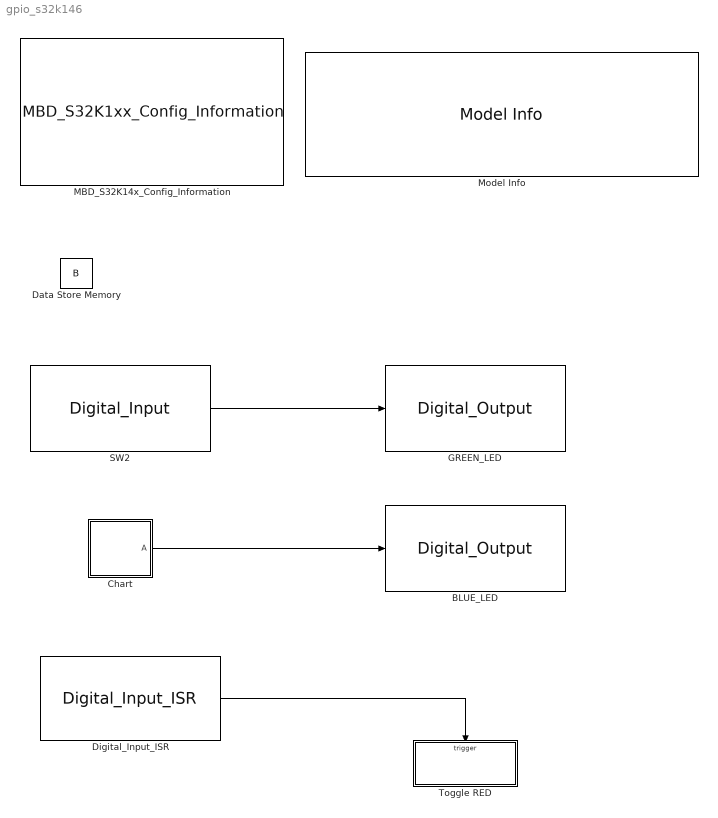
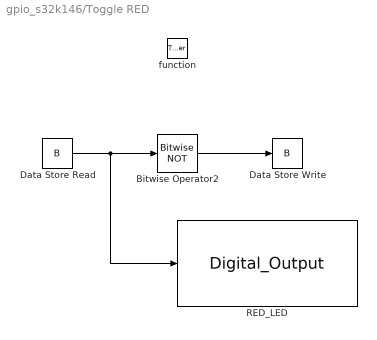
== stateflow chart Chart ==
  state A
  state A1
  (default) -> A
  A -> A1
  A1 -> A
  data: A output boolean [0..1]

/*
 * Academic License - for use in teaching, academic research, and meeting
 * course requirements at degree granting institutions only.  Not for
 * government, commercial, or other organizational use.
 *
 * File: gpio_s32k146.c
 *
 * Code generated for Simulink model 'gpio_s32k146'.
 *
 * Model version                   : 1.99
 * Simulink Coder version          : 9.0 (R2018b) 24-May-2018
 * MBDT for S32K1xx Series Version : 4.1.0 (R2017b-R2019a) 22-Jul-2019
 * C/C++ source code generated on  : Sat Apr  4 21:12:06 2020
 *
 * Target selection: mbd_s32k.tlc
 * Embedded hardware selection: ARM Compatible->ARM Cortex
 * Code generation objectives: Unspecified
 * Validation result: Not run
 */

#include "gpio_s32k146.h"
#include "gpio_s32k146_private.h"

/* Named constants for Chart: '<Root>/Chart' */
#define gpio_s32k146_IN_A              ((uint8_T)1U)
#define gpio_s32k146_IN_A1             ((uint8_T)2U)
#define gpio_s32k146_IN_NO_ACTIVE_CHILD ((uint8_T)0U)

/* Block signals (default storage) */
B_gpio_s32k146_T gpio_s32k146_B;

/* Block states (default storage) */
DW_gpio_s32k146_T gpio_s32k146_DW;

/* Real-time model */
RT_MODEL_gpio_s32k146_T gpio_s32k146_M_;
RT_MODEL_gpio_s32k146_T *const gpio_s32k146_M = &gpio_s32k146_M_;
void GPIPORTC13_callback (void)
{
  /* Output and update for function-call system: '<Root>/Toggle RED' */

  /* DataStoreRead: '<S3>/Data Store Read' */
  gpio_s32k146_B.DataStoreRead = gpio_s32k146_DW.B;

  /* S-Function (sfix_bitop): '<S3>/Bitwise Operator2' incorporates:
   *  DataStoreWrite: '<S3>/Data Store Write'
   */
  gpio_s32k146_DW.B = !gpio_s32k146_B.DataStoreRead;

  /* S-Function (gpio_s32k_output): '<S3>/RED_LED' */

  /* GPOPORTD15 Data Signal Update */
  if (gpio_s32k146_B.DataStoreRead) {
    PINS_DRV_SetPins(PTD, 1UL<<15);
  } else {
    PINS_DRV_ClearPins(PTD, 1UL<<15);
  }

  /* Clear interrupt flag */
  PINS_DRV_ClearPinIntFlagCmd(PORTC, 13);
}

/* Model step function */
void gpio_s32k146_step(void)
{
  /* Chart: '<Root>/Chart' */
  /* Gateway: Chart */
  /* During: Chart */
  if (gpio_s32k146_DW.is_active_c3_gpio_s32k146 == 0U) {
    /* Entry: Chart */
    gpio_s32k146_DW.is_active_c3_gpio_s32k146 = 1U;

    /* Entry Internal: Chart */
    /* Transition: '<S1>:1' */
    gpio_s32k146_DW.is_c3_gpio_s32k146 = gpio_s32k146_IN_A;
    gpio_s32k146_B.A = true;
  } else if (gpio_s32k146_DW.is_c3_gpio_s32k146 == gpio_s32k146_IN_A) {
    /* During 'A': '<S1>:3' */
    /* Transition: '<S1>:7' */
    gpio_s32k146_B.A = false;
    gpio_s32k146_DW.is_c3_gpio_s32k146 = gpio_s32k146_IN_A1;
  } else {
    /* During 'A1': '<S1>:6' */
    /* Transition: '<S1>:8' */
    gpio_s32k146_DW.is_c3_gpio_s32k146 = gpio_s32k146_IN_A;
    gpio_s32k146_B.A = true;
  }

  /* End of Chart: '<Root>/Chart' */

  /* S-Function (gpio_s32k_output): '<Root>/BLUE_LED' */

  /* GPOPORTD0 Data Signal Update */
  if (gpio_s32k146_B.A) {
    PINS_DRV_SetPins(PTD, 1UL<<0);
  } else {
    PINS_DRV_ClearPins(PTD, 1UL<<0);
  }

  /* End of Outputs for S-Function (gpi_s32k_isr): '<Root>/Digital_Input_ISR' */

  /* S-Function (gpio_s32k_input): '<Root>/SW2' */

  /* GPIPORTC12 signal update */
  gpio_s32k146_B.SW2 = (PINS_DRV_ReadPins(PTC) >> 12) & 0x01;

  /* S-Function (gpio_s32k_output): '<Root>/GREEN_LED' */

  /* GPOPORTD16 Data Signal Update */
  if (gpio_s32k146_B.SW2) {
    PINS_DRV_SetPins(PTD, 1UL<<16);
  } else {
    PINS_DRV_ClearPins(PTD, 1UL<<16);
  }
}
